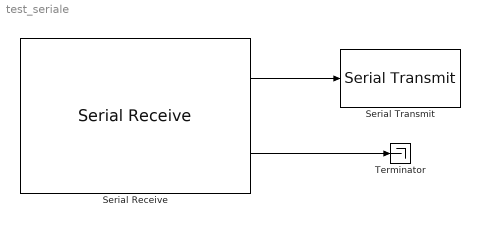
/*
 * Academic License - for use in teaching, academic research, and meeting
 * course requirements at degree granting institutions only.  Not for
 * government, commercial, or other organizational use.
 *
 * File: test_seriale.c
 *
 * Code generated for Simulink model 'test_seriale'.
 *
 * Model version                  : 1.3
 * Simulink Coder version         : 9.4 (R2020b) 29-Jul-2020
 * C/C++ source code generated on : Mon Oct 25 17:13:34 2021
 *
 * Target selection: ert.tlc
 * Embedded hardware selection: ARM Compatible->ARM Cortex
 * Code generation objectives: Unspecified
 * Validation result: Not run
 */

#include "test_seriale.h"
#include "test_seriale_private.h"

/* Block states (default storage) */
DW_test_seriale_T test_seriale_DW;

/* Real-time model */
static RT_MODEL_test_seriale_T test_seriale_M_;
RT_MODEL_test_seriale_T *const test_seriale_M = &test_seriale_M_;
real_T rt_roundd_snf(real_T u)
{
  real_T y;
  if (fabs(u) < 4.503599627370496E+15) {
    if (u >= 0.5) {
      y = floor(u + 0.5);
    } else if (u > -0.5) {
      y = u * 0.0;
    } else {
      y = ceil(u - 0.5);
    }
  } else {
    y = u;
  }

  return y;
}

/* Model step function */
void test_seriale_step(void)
{
  uint8_T dataIn;
  uint8_T status;

  /* MATLABSystem: '<Root>/Serial Receive' */
  if (test_seriale_DW.obj_p.Protocol != test_seriale_P.SerialReceive_Protocol) {
    test_seriale_DW.obj_p.Protocol = test_seriale_P.SerialReceive_Protocol;
  }

  /* MATLABSystem: '<Root>/Serial Transmit' incorporates:
   *  MATLABSystem: '<Root>/Serial Receive'
   */
  MW_Serial_read(3, test_seriale_DW.obj_p.DataSizeInBytes, &dataIn, &status);
  if (test_seriale_DW.obj.Protocol != test_seriale_P.SerialTransmit_Protocol) {
    test_seriale_DW.obj.Protocol = test_seriale_P.SerialTransmit_Protocol;
  }

  MW_Serial_write(test_seriale_DW.obj.port, &dataIn, 1.0,
                  test_seriale_DW.obj.dataSizeInBytes,
                  test_seriale_DW.obj.sendModeEnum, test_seriale_DW.obj.dataType,
                  test_seriale_DW.obj.sendFormatEnum, 2.0, '\x00');

  /* End of MATLABSystem: '<Root>/Serial Transmit' */
}
